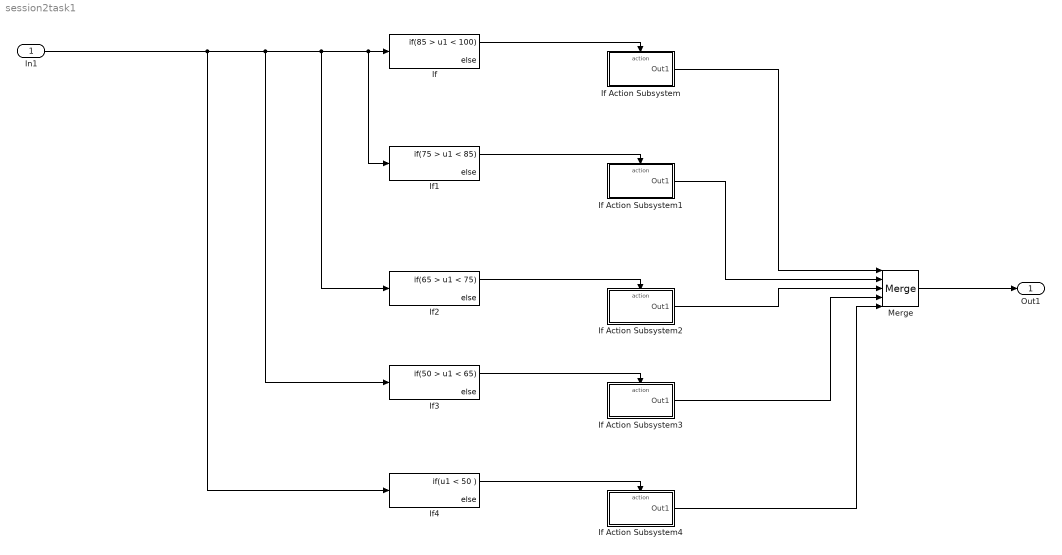
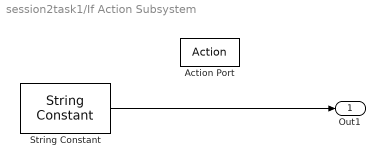
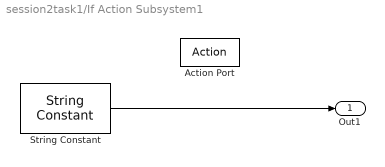
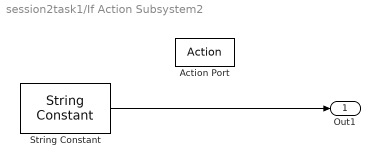
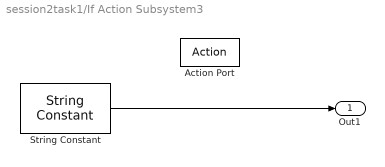
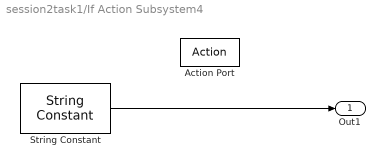
/*
 * File: session2task1.c
 *
 * Code generated for Simulink model 'session2task1'.
 *
 * Model version                  : 1.2
 * Simulink Coder version         : 9.0 (R2018b) 24-May-2018
 * C/C++ source code generated on : Tue Mar 22 07:41:56 2022
 *
 * Target selection: ert.tlc
 * Embedded hardware selection: Intel->x86-64 (Windows64)
 * Code generation objectives: Unspecified
 * Validation result: Not run
 */

#include "session2task1.h"
#include "session2task1_private.h"

/* Block signals (default storage) */
B_session2task1_T session2task1_B;

/* External inputs (root inport signals with default storage) */
ExtU_session2task1_T session2task1_U;

/* External outputs (root outports fed by signals with default storage) */
ExtY_session2task1_T session2task1_Y;

/* Real-time model */
RT_MODEL_session2task1_T session2task1_M_;
RT_MODEL_session2task1_T *const session2task1_M = &session2task1_M_;

/* Model step function */
void session2task1_step(void)
{
  /* Outputs for IfAction SubSystem: '<Root>/If Action Subsystem' incorporates:
   *  ActionPort: '<S1>/Action Port'
   */
  /* If: '<Root>/If' incorporates:
   *  StringConstant: '<S1>/String Constant'
   */
  strncpy(&session2task1_B.Merge[0], session2task1_ConstP.StringConstant_String,
          255U);

  /* End of Outputs for SubSystem: '<Root>/If Action Subsystem' */

  /* Outputs for IfAction SubSystem: '<Root>/If Action Subsystem1' incorporates:
   *  ActionPort: '<S2>/Action Port'
   */
  /* If: '<Root>/If1' incorporates:
   *  StringConstant: '<S2>/String Constant'
   */
  strncpy(&session2task1_B.Merge[0],
          session2task1_ConstP.StringConstant_String_f, 255U);

  /* End of Outputs for SubSystem: '<Root>/If Action Subsystem1' */

  /* Outputs for IfAction SubSystem: '<Root>/If Action Subsystem2' incorporates:
   *  ActionPort: '<S3>/Action Port'
   */
  /* If: '<Root>/If2' incorporates:
   *  StringConstant: '<S3>/String Constant'
   */
  strncpy(&session2task1_B.Merge[0],
          session2task1_ConstP.StringConstant_String_e, 255U);
  session2task1_B.Merge[255] = '\x00';

  /* End of Outputs for SubSystem: '<Root>/If Action Subsystem2' */

  /* Outputs for IfAction SubSystem: '<Root>/If Action Subsystem3' incorporates:
   *  ActionPort: '<S4>/Action Port'
   */
  /* If: '<Root>/If3' incorporates:
   *  StringConstant: '<S4>/String Constant'
   */
  strncpy(&session2task1_B.Merge[0],
          session2task1_ConstP.StringConstant_String_n, 255U);
  session2task1_B.Merge[255] = '\x00';

  /* End of Outputs for SubSystem: '<Root>/If Action Subsystem3' */

  /* If: '<Root>/If4' incorporates:
   *  Inport: '<Root>/In1'
   *  StringConstant: '<S5>/String Constant'
   */
  if (session2task1_U.In1 < 50.0) {
    /* Outputs for IfAction SubSystem: '<Root>/If Action Subsystem4' incorporates:
     *  ActionPort: '<S5>/Action Port'
     */
    strncpy(&session2task1_B.Merge[0],
            session2task1_ConstP.StringConstant_String_o, 255U);
    session2task1_B.Merge[255] = '\x00';

    /* End of Outputs for SubSystem: '<Root>/If Action Subsystem4' */
  }

  /* End of If: '<Root>/If4' */

  /* Outport: '<Root>/Out1' */
  strncpy(&session2task1_Y.Out1[0], session2task1_B.Merge, 255U);
  session2task1_Y.Out1[255] = '\x00';
}
